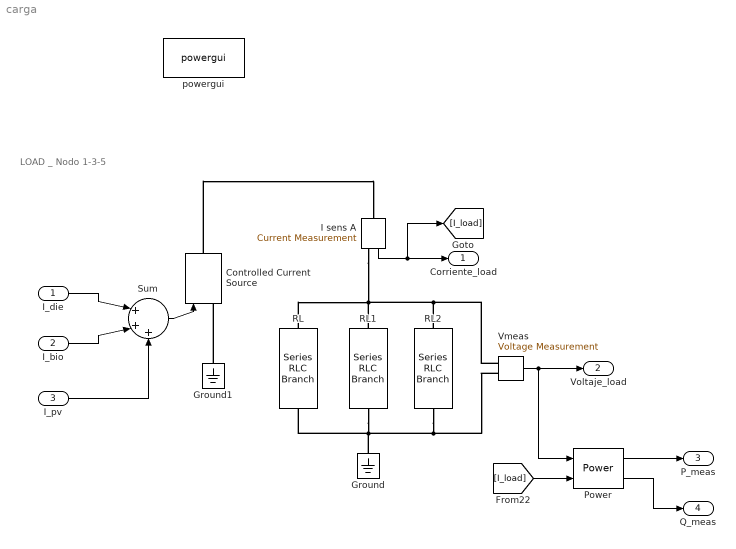
/*
 * File: carga.c
 *
 * Code generated for Simulink model 'carga'.
 *
 * Model version                  : 1.21
 * Simulink Coder version         : 8.12 (R2017a) 16-Feb-2017
 * C/C++ source code generated on : Fri Jul 06 11:12:23 2018
 *
 * Target selection: ert.tlc
 * Embedded hardware selection: Intel->x86-64 (Windows64)
 * Code generation objectives: Unspecified
 * Validation result: Not run
 */

#include "carga.h"
#include "carga_private.h"

/* Block signals (auto storage) */
B_carga_T carga_B;

/* Continuous states */
X_carga_T carga_X;

/* Block states (auto storage) */
DW_carga_T carga_DW;

/* External inputs (root inport signals with auto storage) */
ExtU_carga_T carga_U;

/* External outputs (root outports fed by signals with auto storage) */
ExtY_carga_T carga_Y;


//Funciones generadas por el programador

void set_I_die(double I_die){
	carga_U.I_die=I_die;
}

void set_I_bio(double I_bio){
	carga_U.I_bio=I_bio;
}

void set_I_pv(double I_pv){
	carga_U.I_pv=I_pv;
}
double get_V_load(void){
	return carga_Y.Corriente_load;
	}
	
double get_P(void){
	return carga_Y.P_meas;
	}
double get_Q(void){
	return carga_Y.Q_meas;
}

/* Real-time model */
RT_MODEL_carga_T carga_M_;
RT_MODEL_carga_T *const carga_M = &carga_M_;

/*
 * Time delay interpolation routine
 *
 * The linear interpolation is performed using the formula:
 *
 *          (t2 - tMinusDelay)         (tMinusDelay - t1)
 * u(t)  =  ----------------- * u1  +  ------------------- * u2
 *              (t2 - t1)                  (t2 - t1)
 */
real_T rt_TDelayInterpolate(
  real_T tMinusDelay,                  /* tMinusDelay = currentSimTime - delay */
  real_T tStart,
  real_T *tBuf,
  real_T *uBuf,
  int_T bufSz,
  int_T *lastIdx,
  int_T oldestIdx,
  int_T newIdx,
  real_T initOutput,
  boolean_T discrete,
  boolean_T minorStepAndTAtLastMajorOutput)
{
  int_T i;
  real_T yout, t1, t2, u1, u2;

  /*
   * If there is only one data point in the buffer, this data point must be
   * the t= 0 and tMinusDelay > t0, it ask for something unknown. The best
   * guess if initial output as well
   */
  if ((newIdx == 0) && (oldestIdx ==0 ) && (tMinusDelay > tStart))
    return initOutput;

  /*
   * If tMinusDelay is less than zero, should output initial value
   */
  if (tMinusDelay <= tStart)
    return initOutput;

  /* For fixed buffer extrapolation:
   * if tMinusDelay is small than the time at oldestIdx, if discrete, output
   * tailptr value,  else use tailptr and tailptr+1 value to extrapolate
   * It is also for fixed buffer. Note: The same condition can happen for transport delay block where
   * use tStart and and t[tail] other than using t[tail] and t[tail+1].
   * See below
   */
  if ((tMinusDelay <= tBuf[oldestIdx] ) ) {
    if (discrete) {
      return(uBuf[oldestIdx]);
    } else {
      int_T tempIdx= oldestIdx + 1;
      if (oldestIdx == bufSz-1)
        tempIdx = 0;
      t1= tBuf[oldestIdx];
      t2= tBuf[tempIdx];
      u1= uBuf[oldestIdx];
      u2= uBuf[tempIdx];
      if (t2 == t1) {
        if (tMinusDelay >= t2) {
          yout = u2;
        } else {
          yout = u1;
        }
      } else {
        real_T f1 = (t2-tMinusDelay) / (t2-t1);
        real_T f2 = 1.0 - f1;

        /*
         * Use Lagrange's interpolation formula.  Exact outputs at t1, t2.
         */
        yout = f1*u1 + f2*u2;
      }

      return yout;
    }
  }

  /*
   * When block does not have direct feedthrough, we use the table of
   * values to extrapolate off the end of the table for delays that are less
   * than 0 (less then step size).  This is not completely accurate.  The
   * chain of events is as follows for a given time t.  Major output - look
   * in table.  Update - add entry to table.  Now, if we call the output at
   * time t again, there is a new entry in the table. For very small delays,
   * this means that we will have a different answer from the previous call
   * to the output fcn at the same time t.  The following code prevents this
   * from happening.
   */
  if (minorStepAndTAtLastMajorOutput) {
    /* pretend that the new entry has not been added to table */
    if (newIdx != 0) {
      if (*lastIdx == newIdx) {
        (*lastIdx)--;
      }

      newIdx--;
    } else {
      if (*lastIdx == newIdx) {
        *lastIdx = bufSz-1;
      }

      newIdx = bufSz - 1;
    }
  }

  i = *lastIdx;
  if (tBuf[i] < tMinusDelay) {
    /* Look forward starting at last index */
    while (tBuf[i] < tMinusDelay) {
      /* May occur if the delay is less than step-size - extrapolate */
      if (i == newIdx)
        break;
      i = ( i < (bufSz-1) ) ? (i+1) : 0;/* move through buffer */
    }
  } else {
    /*
     * Look backwards starting at last index which can happen when the
     * delay time increases.
     */
    while (tBuf[i] >= tMinusDelay) {
      /*
       * Due to the entry condition at top of function, we
       * should never hit the end.
       */
      i = (i > 0) ? i-1 : (bufSz-1);   /* move through buffer */
    }

    i = ( i < (bufSz-1) ) ? (i+1) : 0;
  }

  *lastIdx = i;
  if (discrete) {
    /*
     * tempEps = 128 * eps;
     * localEps = max(tempEps, tempEps*fabs(tBuf[i]))/2;
     */
    double tempEps = (DBL_EPSILON) * 128.0;
    double localEps = tempEps * fabs(tBuf[i]);
    if (tempEps > localEps) {
      localEps = tempEps;
    }

    localEps = localEps / 2.0;
    if (tMinusDelay >= (tBuf[i] - localEps)) {
      yout = uBuf[i];
    } else {
      if (i == 0) {
        yout = uBuf[bufSz-1];
      } else {
        yout = uBuf[i-1];
      }
    }
  } else {
    if (i == 0) {
      t1 = tBuf[bufSz-1];
      u1 = uBuf[bufSz-1];
    } else {
      t1 = tBuf[i-1];
      u1 = uBuf[i-1];
    }

    t2 = tBuf[i];
    u2 = uBuf[i];
    if (t2 == t1) {
      if (tMinusDelay >= t2) {
        yout = u2;
      } else {
        yout = u1;
      }
    } else {
      real_T f1 = (t2-tMinusDelay) / (t2-t1);
      real_T f2 = 1.0 - f1;

      /*
       * Use Lagrange's interpolation formula.  Exact outputs at t1, t2.
       */
      yout = f1*u1 + f2*u2;
    }
  }

  return(yout);
}

/*
 * This function updates continuous states using the ODE4 fixed-step
 * solver algorithm
 */
static void rt_ertODEUpdateContinuousStates(RTWSolverInfo *si )
{
  time_T t = rtsiGetT(si);
  time_T tnew = rtsiGetSolverStopTime(si);
  time_T h = rtsiGetStepSize(si);
  real_T *x = rtsiGetContStates(si);
  ODE4_IntgData *id = (ODE4_IntgData *)rtsiGetSolverData(si);
  real_T *y = id->y;
  real_T *f0 = id->f[0];
  real_T *f1 = id->f[1];
  real_T *f2 = id->f[2];
  real_T *f3 = id->f[3];
  real_T temp;
  int_T i;
  int_T nXc = 4;
  rtsiSetSimTimeStep(si,MINOR_TIME_STEP);

  /* Save the state values at time t in y, we'll use x as ynew. */
  (void) memcpy(y, x,
                (uint_T)nXc*sizeof(real_T));

  /* Assumes that rtsiSetT and ModelOutputs are up-to-date */
  /* f0 = f(t,y) */
  rtsiSetdX(si, f0);
  carga_derivatives();

  /* f1 = f(t + (h/2), y + (h/2)*f0) */
  temp = 0.5 * h;
  for (i = 0; i < nXc; i++) {
    x[i] = y[i] + (temp*f0[i]);
  }

  rtsiSetT(si, t + temp);
  rtsiSetdX(si, f1);
  carga_step();
  carga_derivatives();

  /* f2 = f(t + (h/2), y + (h/2)*f1) */
  for (i = 0; i < nXc; i++) {
    x[i] = y[i] + (temp*f1[i]);
  }

  rtsiSetdX(si, f2);
  carga_step();
  carga_derivatives();

  /* f3 = f(t + h, y + h*f2) */
  for (i = 0; i < nXc; i++) {
    x[i] = y[i] + (h*f2[i]);
  }

  rtsiSetT(si, tnew);
  rtsiSetdX(si, f3);
  carga_step();
  carga_derivatives();

  /* tnew = t + h
     ynew = y + (h/6)*(f0 + 2*f1 + 2*f2 + 2*f3) */
  temp = h / 6.0;
  for (i = 0; i < nXc; i++) {
    x[i] = y[i] + temp*(f0[i] + 2.0*f1[i] + 2.0*f2[i] + f3[i]);
  }

  rtsiSetSimTimeStep(si,MAJOR_TIME_STEP);
}

real_T rt_hypotd_snf(real_T u0, real_T u1)
{
  real_T y;
  real_T a;
  a = fabs(u0);
  y = fabs(u1);
  if (a < y) {
    a /= y;
    y *= sqrt(a * a + 1.0);
  } else if (a > y) {
    y /= a;
    y = sqrt(y * y + 1.0) * a;
  } else {
    if (!rtIsNaN(y)) {
      y = a * 1.4142135623730951;
    }
  }

  return y;
}

real_T rt_atan2d_snf(real_T u0, real_T u1)
{
  real_T y;
  int32_T u0_0;
  int32_T u1_0;
  if (rtIsNaN(u0) || rtIsNaN(u1)) {
    y = (rtNaN);
  } else if (rtIsInf(u0) && rtIsInf(u1)) {
    if (u0 > 0.0) {
      u0_0 = 1;
    } else {
      u0_0 = -1;
    }

    if (u1 > 0.0) {
      u1_0 = 1;
    } else {
      u1_0 = -1;
    }

    y = atan2(u0_0, u1_0);
  } else if (u1 == 0.0) {
    if (u0 > 0.0) {
      y = RT_PI / 2.0;
    } else if (u0 < 0.0) {
      y = -(RT_PI / 2.0);
    } else {
      y = 0.0;
    }
  } else {
    y = atan2(u0, u1);
  }

  return y;
}

/* Model step function */
void carga_step(void)
{
  /* local block i/o variables */
  real_T rtb_integrator;
  real_T rtb_TransportDelay;
  real_T rtb_integrator_a;
  real_T rtb_TransportDelay_m;
  real_T rtb_integrator_h;
  real_T rtb_TransportDelay_p;
  real_T rtb_integrator_e;
  real_T rtb_TransportDelay_g;
  real_T rtb_ComplextoMagnitudeAngle_o1;
  real_T rtb_ComplextoMagnitudeAngle_o2;
  if (rtmIsMajorTimeStep(carga_M)) {
    /* set solver stop time */
    if (!(carga_M->Timing.clockTick0+1)) {
      rtsiSetSolverStopTime(&carga_M->solverInfo, ((carga_M->Timing.clockTickH0
        + 1) * carga_M->Timing.stepSize0 * 4294967296.0));
    } else {
      rtsiSetSolverStopTime(&carga_M->solverInfo, ((carga_M->Timing.clockTick0 +
        1) * carga_M->Timing.stepSize0 + carga_M->Timing.clockTickH0 *
        carga_M->Timing.stepSize0 * 4294967296.0));
    }
  }                                    /* end MajorTimeStep */

  /* Update absolute time of base rate at minor time step */
  if (rtmIsMinorTimeStep(carga_M)) {
    carga_M->Timing.t[0] = rtsiGetT(&carga_M->solverInfo);
  }

  if (rtmIsMajorTimeStep(carga_M)) {
    /* Sum: '<Root>/Sum' incorporates:
     *  Inport: '<Root>/I_bio'
     *  Inport: '<Root>/I_die'
     *  Inport: '<Root>/I_pv'
     */
    carga_B.Sum = (carga_U.I_die + carga_U.I_bio) + carga_U.I_pv;

    /* S-Function (sfun_spssw_discc): '<S18>/State-Space' */

    /* S-Function block: <S18>/State-Space */
    {
      real_T accum;

      /*
       * Compute outputs:
       * ---------------
       */
      real_T *Cs = (real_T*)carga_DW.StateSpace_PWORK.CS;
      real_T *Ds = (real_T*)carga_DW.StateSpace_PWORK.DS;
      accum = 0.0;
      accum += *(Cs++) * carga_DW.StateSpace_DSTATE[0];
      accum += *(Cs++) * carga_DW.StateSpace_DSTATE[1];
      accum += *(Ds++) * carga_B.Sum;
      carga_B.StateSpace[0] = accum;
      accum = 0.0;
      accum += *(Cs++) * carga_DW.StateSpace_DSTATE[0];
      accum += *(Cs++) * carga_DW.StateSpace_DSTATE[1];
      accum += *(Ds++) * carga_B.Sum;
      carga_B.StateSpace[1] = accum;
    }

    /* Outport: '<Root>/Corriente_load' */
    carga_Y.Corriente_load = carga_B.StateSpace[1];

    /* Outport: '<Root>/Voltaje_load' */
    carga_Y.Voltaje_load = carga_B.StateSpace[0];
  }

  /* Integrator: '<S12>/integrator' */
  rtb_integrator = carga_X.integrator_CSTATE;

  /* TransportDelay: '<S12>/Transport Delay' */
  {
    real_T **uBuffer = (real_T**)&carga_DW.TransportDelay_PWORK.TUbufferPtrs[0];
    real_T **tBuffer = (real_T**)&carga_DW.TransportDelay_PWORK.TUbufferPtrs[1];
    real_T simTime = carga_M->Timing.t[0];
    real_T tMinusDelay = simTime - (0.016666666666666666);
    rtb_TransportDelay = rt_TDelayInterpolate(
      tMinusDelay,
      0.0,
      *tBuffer,
      *uBuffer,
      carga_DW.TransportDelay_IWORK.CircularBufSize,
      &carga_DW.TransportDelay_IWORK.Last,
      carga_DW.TransportDelay_IWORK.Tail,
      carga_DW.TransportDelay_IWORK.Head,
      0.0,
      0,
      0);
  }

  if (rtmIsMajorTimeStep(carga_M)) {
    /* Memory: '<S12>/Memory' */
    carga_B.Memory = carga_DW.Memory_PreviousInput;
  }

  /* Switch: '<S12>/Switch' incorporates:
   *  Clock: '<S12>/Clock'
   *  Constant: '<S12>/K1'
   *  Gain: '<S12>/Gain'
   *  RelationalOperator: '<S12>/Relational Operator'
   *  Sum: '<S12>/Sum'
   */
  if (carga_M->Timing.t[0] >= 0.016666666666666666) {
    carga_B.Switch = (rtb_integrator - rtb_TransportDelay) * 60.0;
  } else {
    carga_B.Switch = carga_B.Memory;
  }

  /* End of Switch: '<S12>/Switch' */

  /* Integrator: '<S11>/integrator' */
  rtb_integrator_a = carga_X.integrator_CSTATE_c;

  /* TransportDelay: '<S11>/Transport Delay' */
  {
    real_T **uBuffer = (real_T**)&carga_DW.TransportDelay_PWORK_f.TUbufferPtrs[0];
    real_T **tBuffer = (real_T**)&carga_DW.TransportDelay_PWORK_f.TUbufferPtrs[1];
    real_T simTime = carga_M->Timing.t[0];
    real_T tMinusDelay = simTime - (0.016666666666666666);
    rtb_TransportDelay_m = rt_TDelayInterpolate(
      tMinusDelay,
      0.0,
      *tBuffer,
      *uBuffer,
      carga_DW.TransportDelay_IWORK_e.CircularBufSize,
      &carga_DW.TransportDelay_IWORK_e.Last,
      carga_DW.TransportDelay_IWORK_e.Tail,
      carga_DW.TransportDelay_IWORK_e.Head,
      0.0,
      0,
      0);
  }

  if (rtmIsMajorTimeStep(carga_M)) {
    /* Memory: '<S11>/Memory' */
    carga_B.Memory_l = carga_DW.Memory_PreviousInput_l;
  }

  /* Switch: '<S11>/Switch' incorporates:
   *  Clock: '<S11>/Clock'
   *  Constant: '<S11>/K1'
   *  Gain: '<S11>/Gain'
   *  RelationalOperator: '<S11>/Relational Operator'
   *  Sum: '<S11>/Sum'
   */
  if (carga_M->Timing.t[0] >= 0.016666666666666666) {
    carga_B.Switch_n = (rtb_integrator_a - rtb_TransportDelay_m) * 60.0;
  } else {
    carga_B.Switch_n = carga_B.Memory_l;
  }

  /* End of Switch: '<S11>/Switch' */

  /* Integrator: '<S16>/integrator' */
  rtb_integrator_h = carga_X.integrator_CSTATE_i;

  /* TransportDelay: '<S16>/Transport Delay' */
  {
    real_T **uBuffer = (real_T**)&carga_DW.TransportDelay_PWORK_h.TUbufferPtrs[0];
    real_T **tBuffer = (real_T**)&carga_DW.TransportDelay_PWORK_h.TUbufferPtrs[1];
    real_T simTime = carga_M->Timing.t[0];
    real_T tMinusDelay = simTime - (0.016666666666666666);
    rtb_TransportDelay_p = rt_TDelayInterpolate(
      tMinusDelay,
      0.0,
      *tBuffer,
      *uBuffer,
      carga_DW.TransportDelay_IWORK_a.CircularBufSize,
      &carga_DW.TransportDelay_IWORK_a.Last,
      carga_DW.TransportDelay_IWORK_a.Tail,
      carga_DW.TransportDelay_IWORK_a.Head,
      0.0,
      0,
      0);
  }

  if (rtmIsMajorTimeStep(carga_M)) {
    /* Memory: '<S16>/Memory' */
    carga_B.Memory_p = carga_DW.Memory_PreviousInput_o;
  }

  /* Switch: '<S16>/Switch' incorporates:
   *  Clock: '<S16>/Clock'
   *  Constant: '<S16>/K1'
   *  Gain: '<S16>/Gain'
   *  RelationalOperator: '<S16>/Relational Operator'
   *  Sum: '<S16>/Sum'
   */
  if (carga_M->Timing.t[0] >= 0.016666666666666666) {
    carga_B.Switch_nu = (rtb_integrator_h - rtb_TransportDelay_p) * 60.0;
  } else {
    carga_B.Switch_nu = carga_B.Memory_p;
  }

  /* End of Switch: '<S16>/Switch' */

  /* Integrator: '<S15>/integrator' */
  rtb_integrator_e = carga_X.integrator_CSTATE_b;

  /* TransportDelay: '<S15>/Transport Delay' */
  {
    real_T **uBuffer = (real_T**)&carga_DW.TransportDelay_PWORK_fd.TUbufferPtrs
      [0];
    real_T **tBuffer = (real_T**)&carga_DW.TransportDelay_PWORK_fd.TUbufferPtrs
      [1];
    real_T simTime = carga_M->Timing.t[0];
    real_T tMinusDelay = simTime - (0.016666666666666666);
    rtb_TransportDelay_g = rt_TDelayInterpolate(
      tMinusDelay,
      0.0,
      *tBuffer,
      *uBuffer,
      carga_DW.TransportDelay_IWORK_c.CircularBufSize,
      &carga_DW.TransportDelay_IWORK_c.Last,
      carga_DW.TransportDelay_IWORK_c.Tail,
      carga_DW.TransportDelay_IWORK_c.Head,
      0.0,
      0,
      0);
  }

  if (rtmIsMajorTimeStep(carga_M)) {
    /* Memory: '<S15>/Memory' */
    carga_B.Memory_o = carga_DW.Memory_PreviousInput_n;
  }

  /* Switch: '<S15>/Switch' incorporates:
   *  Clock: '<S15>/Clock'
   *  Constant: '<S15>/K1'
   *  Gain: '<S15>/Gain'
   *  RelationalOperator: '<S15>/Relational Operator'
   *  Sum: '<S15>/Sum'
   */
  if (carga_M->Timing.t[0] >= 0.016666666666666666) {
    carga_B.Switch_c = (rtb_integrator_e - rtb_TransportDelay_g) * 60.0;
  } else {
    carga_B.Switch_c = carga_B.Memory_o;
  }

  /* End of Switch: '<S15>/Switch' */

  /* Gain: '<S3>/Gain1' incorporates:
   *  ComplexToMagnitudeAngle: '<S7>/Complex to Magnitude-Angle'
   *  ComplexToMagnitudeAngle: '<S8>/Complex to Magnitude-Angle'
   *  Product: '<S3>/Product'
   *  RealImagToComplex: '<S7>/Real-Imag to Complex'
   *  RealImagToComplex: '<S8>/Real-Imag to Complex'
   */
  rtb_ComplextoMagnitudeAngle_o1 = rt_hypotd_snf(carga_B.Switch,
    carga_B.Switch_n) * rt_hypotd_snf(carga_B.Switch_nu, carga_B.Switch_c) * 0.5;

  /* Gain: '<S3>/Deg->Rad' incorporates:
   *  ComplexToMagnitudeAngle: '<S7>/Complex to Magnitude-Angle'
   *  ComplexToMagnitudeAngle: '<S8>/Complex to Magnitude-Angle'
   *  Gain: '<S7>/Rad->Deg.'
   *  Gain: '<S8>/Rad->Deg.'
   *  RealImagToComplex: '<S7>/Real-Imag to Complex'
   *  RealImagToComplex: '<S8>/Real-Imag to Complex'
   *  Sum: '<S3>/Sum'
   */
  rtb_ComplextoMagnitudeAngle_o2 = (57.295779513082323 * rt_atan2d_snf
    (carga_B.Switch_n, carga_B.Switch) - 57.295779513082323 * rt_atan2d_snf
    (carga_B.Switch_c, carga_B.Switch_nu)) * 0.017453292519943295;

  /* Outport: '<Root>/P_meas' incorporates:
   *  Product: '<S3>/Product1'
   *  Trigonometry: '<S3>/Trigonometric Function1'
   */
  carga_Y.P_meas = rtb_ComplextoMagnitudeAngle_o1 * cos
    (rtb_ComplextoMagnitudeAngle_o2);

  /* Outport: '<Root>/Q_meas' incorporates:
   *  Product: '<S3>/Product3'
   *  Trigonometry: '<S3>/Trigonometric Function2'
   */
  carga_Y.Q_meas = rtb_ComplextoMagnitudeAngle_o1 * sin
    (rtb_ComplextoMagnitudeAngle_o2);

  /* Product: '<S7>/Product' incorporates:
   *  Sin: '<S7>/sin(wt)'
   */
  carga_B.Product = sin(376.99111843077515 * carga_M->Timing.t[0]) * 2.0 *
    carga_B.StateSpace[0];

  /* Product: '<S7>/Product1' incorporates:
   *  Sin: '<S7>/cos(wt)'
   */
  carga_B.Product1 = sin(376.99111843077515 * carga_M->Timing.t[0] +
    1.5707963267948966) * 2.0 * carga_B.StateSpace[0];

  /* Product: '<S8>/Product' incorporates:
   *  Sin: '<S8>/sin(wt)'
   */
  carga_B.Product_a = sin(376.99111843077515 * carga_M->Timing.t[0]) * 2.0 *
    carga_B.StateSpace[1];

  /* Product: '<S8>/Product1' incorporates:
   *  Sin: '<S8>/cos(wt)'
   */
  carga_B.Product1_a = sin(376.99111843077515 * carga_M->Timing.t[0] +
    1.5707963267948966) * 2.0 * carga_B.StateSpace[1];
  if (rtmIsMajorTimeStep(carga_M)) {
    if (rtmIsMajorTimeStep(carga_M)) {
      /* Update for S-Function (sfun_spssw_discc): '<S18>/State-Space' */

      /* S-Function block: <S18>/State-Space */
      {
        const real_T *As = (real_T*)carga_DW.StateSpace_PWORK.AS;
        const real_T *Bs = (real_T*)carga_DW.StateSpace_PWORK.BS;
        real_T *xtmp = (real_T*)carga_DW.StateSpace_PWORK.XTMP;
        real_T accum;

        /* Calculate new states... */
        accum = 0.0;
        accum += *(As++) * carga_DW.StateSpace_DSTATE[0];
        accum += *(As++) * carga_DW.StateSpace_DSTATE[1];
        accum += *(Bs++) * carga_B.Sum;
        xtmp[0] = accum;
        accum = 0.0;
        accum += *(As++) * carga_DW.StateSpace_DSTATE[0];
        accum += *(As++) * carga_DW.StateSpace_DSTATE[1];
        accum += *(Bs++) * carga_B.Sum;
        xtmp[1] = accum;
        carga_DW.StateSpace_DSTATE[0] = xtmp[0];
        carga_DW.StateSpace_DSTATE[1] = xtmp[1];
      }
    }

    /* Update for TransportDelay: '<S12>/Transport Delay' */
    {
      real_T **uBuffer = (real_T**)&carga_DW.TransportDelay_PWORK.TUbufferPtrs[0];
      real_T **tBuffer = (real_T**)&carga_DW.TransportDelay_PWORK.TUbufferPtrs[1];
      real_T simTime = carga_M->Timing.t[0];
      carga_DW.TransportDelay_IWORK.Head = ((carga_DW.TransportDelay_IWORK.Head <
        (carga_DW.TransportDelay_IWORK.CircularBufSize-1)) ?
        (carga_DW.TransportDelay_IWORK.Head+1) : 0);
      if (carga_DW.TransportDelay_IWORK.Head ==
          carga_DW.TransportDelay_IWORK.Tail) {
        carga_DW.TransportDelay_IWORK.Tail =
          ((carga_DW.TransportDelay_IWORK.Tail <
            (carga_DW.TransportDelay_IWORK.CircularBufSize-1)) ?
           (carga_DW.TransportDelay_IWORK.Tail+1) : 0);
      }

      (*tBuffer)[carga_DW.TransportDelay_IWORK.Head] = simTime;
      (*uBuffer)[carga_DW.TransportDelay_IWORK.Head] = rtb_integrator;
    }

    if (rtmIsMajorTimeStep(carga_M)) {
      /* Update for Memory: '<S12>/Memory' */
      carga_DW.Memory_PreviousInput = carga_B.Switch;
    }

    /* Update for TransportDelay: '<S11>/Transport Delay' */
    {
      real_T **uBuffer = (real_T**)
        &carga_DW.TransportDelay_PWORK_f.TUbufferPtrs[0];
      real_T **tBuffer = (real_T**)
        &carga_DW.TransportDelay_PWORK_f.TUbufferPtrs[1];
      real_T simTime = carga_M->Timing.t[0];
      carga_DW.TransportDelay_IWORK_e.Head =
        ((carga_DW.TransportDelay_IWORK_e.Head <
          (carga_DW.TransportDelay_IWORK_e.CircularBufSize-1)) ?
         (carga_DW.TransportDelay_IWORK_e.Head+1) : 0);
      if (carga_DW.TransportDelay_IWORK_e.Head ==
          carga_DW.TransportDelay_IWORK_e.Tail) {
        carga_DW.TransportDelay_IWORK_e.Tail =
          ((carga_DW.TransportDelay_IWORK_e.Tail <
            (carga_DW.TransportDelay_IWORK_e.CircularBufSize-1)) ?
           (carga_DW.TransportDelay_IWORK_e.Tail+1) : 0);
      }

      (*tBuffer)[carga_DW.TransportDelay_IWORK_e.Head] = simTime;
      (*uBuffer)[carga_DW.TransportDelay_IWORK_e.Head] = rtb_integrator_a;
    }

    if (rtmIsMajorTimeStep(carga_M)) {
      /* Update for Memory: '<S11>/Memory' */
      carga_DW.Memory_PreviousInput_l = carga_B.Switch_n;
    }

    /* Update for TransportDelay: '<S16>/Transport Delay' */
    {
      real_T **uBuffer = (real_T**)
        &carga_DW.TransportDelay_PWORK_h.TUbufferPtrs[0];
      real_T **tBuffer = (real_T**)
        &carga_DW.TransportDelay_PWORK_h.TUbufferPtrs[1];
      real_T simTime = carga_M->Timing.t[0];
      carga_DW.TransportDelay_IWORK_a.Head =
        ((carga_DW.TransportDelay_IWORK_a.Head <
          (carga_DW.TransportDelay_IWORK_a.CircularBufSize-1)) ?
         (carga_DW.TransportDelay_IWORK_a.Head+1) : 0);
      if (carga_DW.TransportDelay_IWORK_a.Head ==
          carga_DW.TransportDelay_IWORK_a.Tail) {
        carga_DW.TransportDelay_IWORK_a.Tail =
          ((carga_DW.TransportDelay_IWORK_a.Tail <
            (carga_DW.TransportDelay_IWORK_a.CircularBufSize-1)) ?
           (carga_DW.TransportDelay_IWORK_a.Tail+1) : 0);
      }

      (*tBuffer)[carga_DW.TransportDelay_IWORK_a.Head] = simTime;
      (*uBuffer)[carga_DW.TransportDelay_IWORK_a.Head] = rtb_integrator_h;
    }

    if (rtmIsMajorTimeStep(carga_M)) {
      /* Update for Memory: '<S16>/Memory' */
      carga_DW.Memory_PreviousInput_o = carga_B.Switch_nu;
    }

    /* Update for TransportDelay: '<S15>/Transport Delay' */
    {
      real_T **uBuffer = (real_T**)
        &carga_DW.TransportDelay_PWORK_fd.TUbufferPtrs[0];
      real_T **tBuffer = (real_T**)
        &carga_DW.TransportDelay_PWORK_fd.TUbufferPtrs[1];
      real_T simTime = carga_M->Timing.t[0];
      carga_DW.TransportDelay_IWORK_c.Head =
        ((carga_DW.TransportDelay_IWORK_c.Head <
          (carga_DW.TransportDelay_IWORK_c.CircularBufSize-1)) ?
         (carga_DW.TransportDelay_IWORK_c.Head+1) : 0);
      if (carga_DW.TransportDelay_IWORK_c.Head ==
          carga_DW.TransportDelay_IWORK_c.Tail) {
        carga_DW.TransportDelay_IWORK_c.Tail =
          ((carga_DW.TransportDelay_IWORK_c.Tail <
            (carga_DW.TransportDelay_IWORK_c.CircularBufSize-1)) ?
           (carga_DW.TransportDelay_IWORK_c.Tail+1) : 0);
      }

      (*tBuffer)[carga_DW.TransportDelay_IWORK_c.Head] = simTime;
      (*uBuffer)[carga_DW.TransportDelay_IWORK_c.Head] = rtb_integrator_e;
    }

    if (rtmIsMajorTimeStep(carga_M)) {
      /* Update for Memory: '<S15>/Memory' */
      carga_DW.Memory_PreviousInput_n = carga_B.Switch_c;
    }
  }                                    /* end MajorTimeStep */

  if (rtmIsMajorTimeStep(carga_M)) {
    rt_ertODEUpdateContinuousStates(&carga_M->solverInfo);

    /* Update absolute time for base rate */
    /* The "clockTick0" counts the number of times the code of this task has
     * been executed. The absolute time is the multiplication of "clockTick0"
     * and "Timing.stepSize0". Size of "clockTick0" ensures timer will not
     * overflow during the application lifespan selected.
     * Timer of this task consists of two 32 bit unsigned integers.
     * The two integers represent the low bits Timing.clockTick0 and the high bits
     * Timing.clockTickH0. When the low bit overflows to 0, the high bits increment.
     */
    if (!(++carga_M->Timing.clockTick0)) {
      ++carga_M->Timing.clockTickH0;
    }

    carga_M->Timing.t[0] = rtsiGetSolverStopTime(&carga_M->solverInfo);

    {
      /* Update absolute timer for sample time: [1.0E-6s, 0.0s] */
      /* The "clockTick1" counts the number of times the code of this task has
       * been executed. The resolution of this integer timer is 1.0E-6, which is the step size
       * of the task. Size of "clockTick1" ensures timer will not overflow during the
       * application lifespan selected.
       * Timer of this task consists of two 32 bit unsigned integers.
       * The two integers represent the low bits Timing.clockTick1 and the high bits
       * Timing.clockTickH1. When the low bit overflows to 0, the high bits increment.
       */
      carga_M->Timing.clockTick1++;
      if (!carga_M->Timing.clockTick1) {
        carga_M->Timing.clockTickH1++;
      }
    }
  }                                    /* end MajorTimeStep */
}
